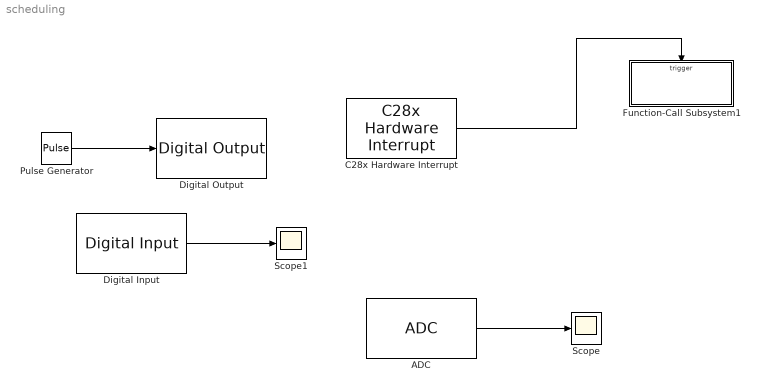
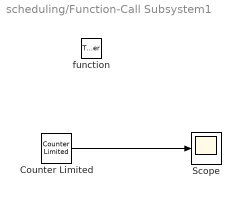
/*
 * File: scheduling.c
 *
 * Code generated for Simulink model 'scheduling'.
 *
 * Model version                  : 1.1
 * Simulink Coder version         : 24.1 (R2024a) 19-Nov-2023
 * C/C++ source code generated on : Thu Apr  3 17:43:49 2025
 *
 * Target selection: ert.tlc
 * Embedded hardware selection: Texas Instruments->C2000
 * Code generation objectives: Unspecified
 * Validation result: Not run
 */

#include "scheduling.h"
#include "scheduling_private.h"
#include "rtwtypes.h"
#include <string.h>
#include "xcp.h"
#include "ext_mode.h"

extmodeSimulationTime_T currentTime = (extmodeSimulationTime_T) 0;

/* Block signals (default storage) */
B_scheduling_T scheduling_B;

/* Block states (default storage) */
DW_scheduling_T scheduling_DW;

/* Real-time model */
static RT_MODEL_scheduling_T scheduling_M_;
RT_MODEL_scheduling_T *const scheduling_M = &scheduling_M_;
static void rate_monotonic_scheduler(void);

#ifndef __TMS320C28XX_CLA__

uint16_T MW_adcAInitFlag = 0;

#endif

/* Hardware Interrupt Block: '<Root>/C28x Hardware Interrupt' */
void isr_int1pie4_task_fcn(void)
{
  if (1 == runModel) {
    /* Call the system: <Root>/Function-Call Subsystem1 */
    {
      /* Reset subsysRan breadcrumbs */
      srClearBC(scheduling_DW.FunctionCallSubsystem1_SubsysRa);

      /* S-Function (c28xisr_c2000): '<Root>/C28x Hardware Interrupt' */

      /* Output and update for function-call system: '<Root>/Function-Call Subsystem1' */

      /* Asynchronous task reads absolute time. Data (absolute time)
         transfers from low priority task (base rate) to high priority
         task (asynchronous rate). Double buffers are used to ensure
         data integrity.
         -- rtmL2HLastBufWr is the buffer index that is written last.
       */
      scheduling_M->Timing.clockTick2 =
        scheduling_M->Timing.rtmL2HDbBufClockTick
        [scheduling_M->Timing.rtmL2HLastBufWr];

      /* UnitDelay: '<S2>/Output' */
      scheduling_B.Output = scheduling_DW.Output_DSTATE;

      /* Sum: '<S3>/FixPt Sum1' incorporates:
       *  Constant: '<S3>/FixPt Constant'
       *  UnitDelay: '<S2>/Output'
       */
      scheduling_DW.Output_DSTATE = (scheduling_B.Output +
        scheduling_P.FixPtConstant_Value) & 255U;

      /* Switch: '<S4>/FixPt Switch' incorporates:
       *  Sum: '<S3>/FixPt Sum1'
       */
      if (scheduling_DW.Output_DSTATE > scheduling_P.WrapToZero_Threshold) {
        /* Update for UnitDelay: '<S2>/Output' incorporates:
         *  Constant: '<S4>/Constant'
         */
        scheduling_DW.Output_DSTATE = scheduling_P.Constant_Value;
      }

      /* End of Switch: '<S4>/FixPt Switch' */
      scheduling_DW.FunctionCallSubsystem1_SubsysRa = 4;

      /* End of Outputs for S-Function (c28xisr_c2000): '<Root>/C28x Hardware Interrupt' */
    }

    currentTime = (extmodeSimulationTime_T) scheduling_M->Timing.clockTick0;
    extmodeEvent(2,currentTime);
  }
}

/*
 * Set which subrates need to run this base step (base rate always runs).
 * This function must be called prior to calling the model step function
 * in order to remember which rates need to run this base step.  The
 * buffering of events allows for overlapping preemption.
 */
void scheduling_SetEventsForThisBaseStep(boolean_T *eventFlags)
{
  /* Task runs when its counter is zero, computed via rtmStepTask macro */
  eventFlags[1] = ((boolean_T)rtmStepTask(scheduling_M, 1));
}

/*
 *         This function updates active task flag for each subrate
 *         and rate transition flags for tasks that exchange data.
 *         The function assumes rate-monotonic multitasking scheduler.
 *         The function must be called at model base rate so that
 *         the generated code self-manages all its subrates and rate
 *         transition flags.
 */
static void rate_monotonic_scheduler(void)
{
  /* Compute which subrates run during the next base time step.  Subrates
   * are an integer multiple of the base rate counter.  Therefore, the subtask
   * counter is reset when it reaches its limit (zero means run).
   */
  (scheduling_M->Timing.TaskCounters.TID[1])++;
  if ((scheduling_M->Timing.TaskCounters.TID[1]) > 9) {/* Sample time: [1.0s, 0.0s] */
    scheduling_M->Timing.TaskCounters.TID[1] = 0;
  }
}

/* Model step function for TID0 */
void scheduling_step0(void)            /* Sample time: [0.1s, 0.0s] */
{
  {                                    /* Sample time: [0.1s, 0.0s] */
    rate_monotonic_scheduler();
  }

  /* S-Function (c2802xadc): '<Root>/ADC' */
  {
    /*  Internal Reference Voltage : Fixed scale 0 to 3.3 V range.  */
    /*  External Reference Voltage : Allowable ranges of VREFHI(ADCINA0) = 3.3 and VREFLO(tied to ground) = 0  */
    AdcaRegs.ADCSOCFRC1.bit.SOC0 = 1U;

    /* Wait for the period of Sampling window and EOC result to be latched after trigger */
#ifndef __TMS320C28XX_CLA__

    asm(" RPT #75|| NOP");

#endif

#ifdef __TMS320C28XX_CLA__

    real32_T wait_index;
    for (wait_index= 12; wait_index > 0; wait_index--)
      __mnop();

#endif

    scheduling_B.ADC = (AdcaResultRegs.ADCRESULT0);
  }

  /* S-Function (c280xgpio_di): '<Root>/Digital Input' */
  {
    scheduling_B.DigitalInput = GpioDataRegs.GPADAT.bit.GPIO1;
  }

  /* Update absolute time */
  /* The "clockTick0" counts the number of times the code of this task has
   * been executed. The absolute time is the multiplication of "clockTick0"
   * and "Timing.stepSize0". Size of "clockTick0" ensures timer will not
   * overflow during the application lifespan selected.
   */
  scheduling_M->Timing.taskTime0 =
    ((time_T)(++scheduling_M->Timing.clockTick0)) *
    scheduling_M->Timing.stepSize0;

  {
    /* Base rate updates double buffers of absolute time for
       asynchronous task. Double buffers are used to ensure
       data integrity when asynchronous task reads absolute
       time.
       -- rtmL2HLastBufWr is the buffer index that is written last.
     */
    boolean_T bufIdx = !(scheduling_M->Timing.rtmL2HLastBufWr != 0U);
    scheduling_M->Timing.rtmL2HDbBufClockTick[bufIdx] =
      scheduling_M->Timing.clockTick0;
    scheduling_M->Timing.rtmL2HLastBufWr = bufIdx ? 1U : 0U;
  }
}

/* Model step function for TID1 */
void scheduling_step1(void)            /* Sample time: [1.0s, 0.0s] */
{
  /* DiscretePulseGenerator: '<Root>/Pulse Generator' */
  scheduling_B.PulseGenerator = (scheduling_DW.clockTickCounter <
    scheduling_P.PulseGenerator_Duty) && (scheduling_DW.clockTickCounter >= 0L) ?
    scheduling_P.PulseGenerator_Amp : 0.0;

  /* DiscretePulseGenerator: '<Root>/Pulse Generator' */
  if (scheduling_DW.clockTickCounter >= scheduling_P.PulseGenerator_Period - 1.0)
  {
    scheduling_DW.clockTickCounter = 0L;
  } else {
    scheduling_DW.clockTickCounter++;
  }

  /* S-Function (c280xgpio_do): '<Root>/Digital Output' */
  {
    if (scheduling_B.PulseGenerator) {
      GpioDataRegs.GPASET.bit.GPIO0 = 1U;
    } else {
      GpioDataRegs.GPACLEAR.bit.GPIO0 = 1U;
    }
  }

  /* Update absolute time */
  /* The "clockTick1" counts the number of times the code of this task has
   * been executed. The resolution of this integer timer is 1.0, which is the step size
   * of the task. Size of "clockTick1" ensures timer will not overflow during the
   * application lifespan selected.
   */
  scheduling_M->Timing.clockTick1++;
}
